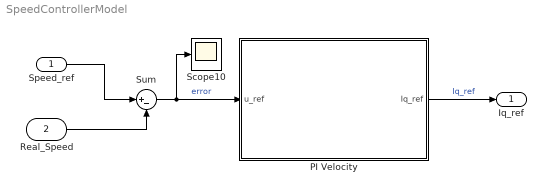
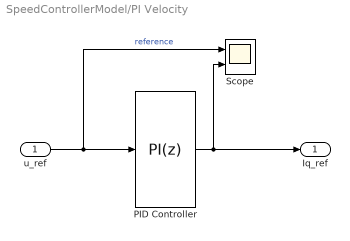
//
// Academic License - for use in teaching, academic research, and meeting
// course requirements at degree granting institutions only.  Not for
// government, commercial, or other organizational use.
//
// File: SpeedControllerModel.cpp
//
// Code generated for Simulink model 'SpeedControllerModel'.
//
// Model version                  : 1.6
// Simulink Coder version         : 25.2 (R2025b) 28-Jul-2025
// C/C++ source code generated on : Wed Jun  3 09:38:42 2026
//
// Target selection: ert.tlc
// Embedded hardware selection: STMicroelectronics->ST10/Super10
// Code generation objective: Execution efficiency
// Validation result: Not run
//
#include "SpeedControllerModel.h"

// Model step function
float SpeedController::step(float arg_Speed_ref, float arg_Real_Speed)
{
  float Integrator;
  float Integrator_tmp;
  float rtb_error;

  // specified return value
  float arg_Iq_ref;

  // Sum: '<Root>/Sum' incorporates:
  //   Inport: '<Root>/Real_Speed'
  //   Inport: '<Root>/Speed_ref'

  rtb_error = arg_Speed_ref - arg_Real_Speed;

  // DiscreteIntegrator: '<S37>/Integrator' incorporates:
  //   Gain: '<S34>/Integral Gain'

  Integrator_tmp = 15.0F * rtb_error * 0.0005F;

  // DiscreteIntegrator: '<S37>/Integrator'
  Integrator = Integrator_tmp + SpeedControllerModel_DW.speed_integrator_state;

  // Outport: '<Root>/Iq_ref' incorporates:
  //   Gain: '<S42>/Proportional Gain'
  //   Sum: '<S46>/Sum'

  arg_Iq_ref = 6.0F * rtb_error + Integrator;

  // Update for DiscreteIntegrator: '<S37>/Integrator'
  SpeedControllerModel_DW.speed_integrator_state = Integrator_tmp + Integrator;
  return arg_Iq_ref;
}
